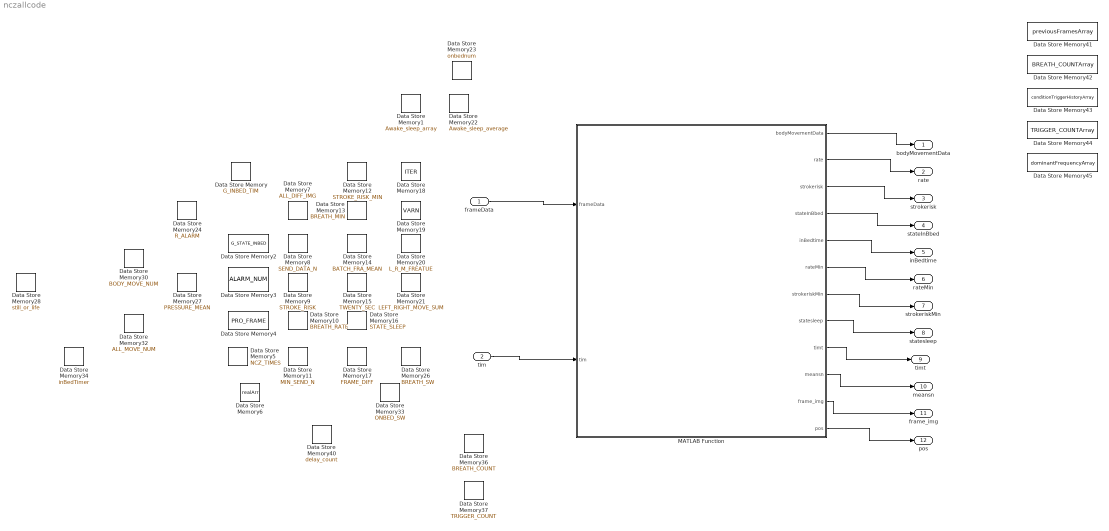
== matlab function nczallcode/MATLAB Function ==
function [bodyMovementData,rate,strokerisk,stateInBbed,inBedtime,rateMin,strokeriskMin,statesleep,timt,meansn,frame_img, pos] = nczcode(frameData, tim)
    % 定义全局变量
    global G_INBED_TIM 
%     global G_OUTBED_TIM
%     global SW_INBED
%     global SW_OUTBED
%     global INBED_TIME %Bed leaving reminder record variable
    global realArr
%     global onBedArr
    global G_STATE_INBED
    global PRO_FRAME
    global ALL_DIFF_IMG
    global SEND_DATA_N  
    global STROKE_RISK
    global BREATH_RATE  
    global MIN_SEND_N
    global STROKE_RISK_MIN
    global BREATH_MIN
    global BATCH_FRA_MEAN
    global TWENTY_SEC       
    global STATE_SLEEP
    global FRAME_DIFF
    global ITER
    global VARN
%     global ONBED_SW
    global BREATH_SW
    global PRESSURE_MEAN
    global BODY_MOVE_NUM
%     global ALL_MOVE_LIST
%     global ALL_MOVE_NUM
    global still_or_life
    global inBedTimer
%     global previousFrames
%     global BREATH_COUNT
%     global TRIGGER_COUNT
%     global conditionTriggerHistory %still state trigger
%     global dominantFrequency
    global delay_count
    %清醒入睡数组
    global Awake_sleep_array
    global Awake_sleep_average
    %onbednum 在床持续时间计数
    global onbednum
      
      div_num = 6; %160大床整除系数
      XTest = frameData';
      frameData = round(frameData/div_num);
    % 调整数据顺序并去噪
    frameData_b = frameData; % copy of original data for breath

    framedata_fall = frameData_b';
   

    %% 初始化相关变量
    inBedFlag = 14 * VARN; %0621：2000/160
%     move_prop = VARN;
    bodyMovementData = (-1) * ones(24,1) * VARN;   
    strokerisk = (-1) * VARN;  
    strokeriskMin = (-1) * VARN;   
    rate = (-1) * VARN;
    rateMin = (-1) * VARN;
    stateInBbed = (-1) * VARN;    
    statesleep = (-1) * ones(48,1) * VARN; 
    inBedtime = (-1) * VARN;
    timt = (-1) * VARN;
    meansn = (-1) * VARN;
    pos = (-1) * VARN;
    frame_img = (-1) * ones(160,1) * VARN;
%     samplingRate = 12 * VARN;
%     alarm_switch = 0;
%     on_mat_flag = 0; %在垫标志位240703
    SEND_DATA_N = SEND_DATA_N+1;

    %% 体动赋值
    gain = 1;
    if SEND_DATA_N*gain >= 4  
        pos = single(predictTree(XTest));
%         rate = BODY_MOVE_NUM;%测试
        BREATH_MIN = BREATH_MIN + BREATH_RATE;
        SEND_DATA_N = VARN - 1;
        still_or_life = VARN - 1;
    end

    %% 数据处理和传输
    if MIN_SEND_N*gain >= 720
        frame_img = reshape(frameData, 160, 1);
    end
end

%% 辅助函数

function YPred = predictTree(XTest)
    % 加载预训练的决策树模型
    persistent treeModel
    if isempty(treeModel)
        treeModel = loadCompactModel('trainedTreeModel.mat');
    end
    
    % 对输入数据进行归一化
    X_min = min(XTest, [], 2);
    X_max = max(XTest, [], 2);
    XTest_normalized = (XTest - X_min) ./ (X_max - X_min + eps);
    
    % 预测
    YPred = predict(treeModel, XTest_normalized);
end

function model = loadCompactModel(filename)
    % 加载紧凑模型
    s = coder.load(filename);
    model = s.tree;  % 将 s.treeModel 改为 s.tree
end

/*
 * Academic License - for use in teaching, academic research, and meeting
 * course requirements at degree granting institutions only.  Not for
 * government, commercial, or other organizational use.
 *
 * File: nczallcode.c
 *
 * Code generated for Simulink model 'nczallcode'.
 *
 * Model version                  : 7.17
 * Simulink Coder version         : 24.1 (R2024a) 19-Nov-2023
 * C/C++ source code generated on : Wed Oct  9 14:09:47 2024
 *
 * Target selection: ert.tlc
 * Embedded hardware selection: NXP->Cortex-M4
 * Code generation objectives: Unspecified
 * Validation result: Not run
 */

#include "nczallcode.h"
#include "rtwtypes.h"
#include "nczallcode_types.h"
#include <math.h>
#include "rt_nonfinite.h"
#include <string.h>

/* Block states (default storage) */
DW_nczallcode_T nczallcode_DW;

/* External inputs (root inport signals with default storage) */
ExtU_nczallcode_T nczallcode_U;

/* External outputs (root outports fed by signals with default storage) */
ExtY_nczallcode_T nczallcode_Y;

/* Real-time model */
static RT_MODEL_nczallcode_T nczallcode_M_;
RT_MODEL_nczallcode_T *const nczallcode_M = &nczallcode_M_;

/* Forward declaration for local functions */
static void nczallcode_strtrim(const char_T x_data[], const int32_T x_size[2],
  char_T y_data[], int32_T y_size[2]);
static void nczallcode_insertionsort(int32_T x[3], const
  cell_wrap_1_nczallcode_T cmp_workspace_c[3]);
static void nczallcode_introsort(int32_T x[3], const cell_wrap_1_nczallcode_T
  cmp_workspace_c[3]);
static uint8_T nczallc_categorical_categorical(const cell_wrap_1_nczallcode_T
  *inputData, const cell_wrap_1_nczallcode_T varargin_1[3]);
static uint8_T ncza_ClassificationTree_predict(const real_T
  obj_CutPredictorIndex[227], const real_T obj_Children[454], const real_T
  obj_CutPoint[227], const real_T obj_PruneList[227], const boolean_T
  obj_NanCutPoints[227], const real_T obj_Prior[3], const real_T obj_Cost[9],
  const real_T obj_ClassProbability[681], const real32_T Xin[160]);

/* Function for MATLAB Function: '<Root>/MATLAB Function' */
static void nczallcode_strtrim(const char_T x_data[], const int32_T x_size[2],
  char_T y_data[], int32_T y_size[2])
{
  int32_T b_j1;
  int32_T i;
  int32_T j2;
  static const boolean_T d[128] = { false, false, false, false, false, false,
    false, false, false, true, true, true, true, true, false, false, false,
    false, false, false, false, false, false, false, false, false, false, false,
    true, true, true, true, true, false, false, false, false, false, false,
    false, false, false, false, false, false, false, false, false, false, false,
    false, false, false, false, false, false, false, false, false, false, false,
    false, false, false, false, false, false, false, false, false, false, false,
    false, false, false, false, false, false, false, false, false, false, false,
    false, false, false, false, false, false, false, false, false, false, false,
    false, false, false, false, false, false, false, false, false, false, false,
    false, false, false, false, false, false, false, false, false, false, false,
    false, false, false, false, false, false, false, false, false, false, false,
    false };

  b_j1 = 0;
  while ((b_j1 + 1 <= x_size[1]) && d[(int32_T)x_data[b_j1]]) {
    b_j1++;
  }

  j2 = x_size[1];
  while ((j2 > 0) && d[(int32_T)x_data[j2 - 1]]) {
    j2--;
  }

  if (b_j1 + 1 > j2) {
    b_j1 = 0;
    j2 = 0;
  }

  y_size[0] = 1;
  j2 -= b_j1;
  y_size[1] = j2;
  for (i = 0; i < j2; i++) {
    y_data[i] = x_data[b_j1 + i];
  }
}

/* Function for MATLAB Function: '<Root>/MATLAB Function' */
static void nczallcode_insertionsort(int32_T x[3], const
  cell_wrap_1_nczallcode_T cmp_workspace_c[3])
{
  int32_T k;
  for (k = 0; k < 2; k++) {
    int32_T idx;
    int32_T xc;
    boolean_T exitg1;
    xc = x[k + 1] - 1;
    idx = k;
    exitg1 = false;
    while ((!exitg1) && (idx + 1 >= 1)) {
      int32_T b_k;
      int32_T j;
      int32_T n;
      int32_T n_tmp;
      int32_T n_tmp_0;
      boolean_T varargout_1;
      j = x[idx];
      n_tmp = cmp_workspace_c[xc].f1.size[1];
      n_tmp_0 = cmp_workspace_c[x[idx] - 1].f1.size[1];
      n = (int32_T)fmin(n_tmp, n_tmp_0);
      varargout_1 = (n_tmp < n_tmp_0);
      b_k = 0;
      int32_T exitg2;
      do {
        exitg2 = 0;
        if (b_k <= n - 1) {
          char_T tmp;
          char_T tmp_0;
          tmp = cmp_workspace_c[xc].f1.data[0];
          tmp_0 = cmp_workspace_c[x[idx] - 1].f1.data[0];
          if (tmp_0 != tmp) {
            varargout_1 = (tmp < tmp_0);
            exitg2 = 1;
          } else {
            b_k++;
          }
        } else {
          if (n_tmp_0 == n_tmp) {
            varargout_1 = (xc + 1 < j);
          }

          exitg2 = 1;
        }
      } while (exitg2 == 0);

      if (varargout_1) {
        x[idx + 1] = x[idx];
        idx--;
      } else {
        exitg1 = true;
      }
    }

    x[idx + 1] = xc + 1;
  }
}

/* Function for MATLAB Function: '<Root>/MATLAB Function' */
static void nczallcode_introsort(int32_T x[3], const cell_wrap_1_nczallcode_T
  cmp_workspace_c[3])
{
  nczallcode_insertionsort(x, cmp_workspace_c);
}

/* Function for MATLAB Function: '<Root>/MATLAB Function' */
static uint8_T nczallc_categorical_categorical(const cell_wrap_1_nczallcode_T
  *inputData, const cell_wrap_1_nczallcode_T varargin_1[3])
{
  cell_wrap_1_nczallcode_T a[3];
  cell_wrap_1_nczallcode_T b_a;
  int32_T f[3];
  int32_T b_i;
  int32_T exitg2;
  int32_T i;
  int32_T kstr;
  int32_T nb_tmp;
  uint8_T b_codes;
  boolean_T b_bool;
  boolean_T d;
  boolean_T exitg1;
  nczallcode_strtrim(inputData->f1.data, inputData->f1.size, b_a.f1.data,
                     b_a.f1.size);
  for (i = 0; i < 3; i++) {
    nczallcode_strtrim(varargin_1[i].f1.data, varargin_1[i].f1.size, a[i].
                       f1.data, a[i].f1.size);
    f[i] = i + 1;
  }

  nczallcode_introsort(f, a);
  i = 0;
  b_i = 0;
  exitg1 = false;
  while ((!exitg1) && (b_i < 3)) {
    b_bool = false;
    nb_tmp = a[b_i].f1.size[1];
    d = (b_a.f1.size[1] == 0);
    if (d && (nb_tmp == 0)) {
      b_bool = true;
    } else if (b_a.f1.size[1] == nb_tmp) {
      kstr = 0;
      do {
        exitg2 = 0;
        if (kstr <= nb_tmp - 1) {
          if (b_a.f1.data[0] != a[b_i].f1.data[0]) {
            exitg2 = 1;
          } else {
            kstr++;
          }
        } else {
          b_bool = true;
          exitg2 = 1;
        }
      } while (exitg2 == 0);
    }

    if (b_bool) {
      i = b_i + 1;
      exitg1 = true;
    } else {
      b_i++;
    }
  }

  b_codes = (uint8_T)i;
  return b_codes;
}

/* Function for MATLAB Function: '<Root>/MATLAB Function' */
static uint8_T ncza_ClassificationTree_predict(const real_T
  obj_CutPredictorIndex[227], const real_T obj_Children[454], const real_T
  obj_CutPoint[227], const real_T obj_PruneList[227], const boolean_T
  obj_NanCutPoints[227], const real_T obj_Prior[3], const real_T obj_Cost[9],
  const real_T obj_ClassProbability[681], const real32_T Xin[160])
{
  cell_wrap_1_nczallcode_T ain[4];
  cell_wrap_1_nczallcode_T b_ain[4];
  cell_wrap_1_nczallcode_T b[3];
  cell_wrap_1_nczallcode_T a;
  cell_wrap_1_nczallcode_T b_labels;
  cell_wrap_1_nczallcode_T d;
  cell_wrap_1_nczallcode_T e;
  cell_wrap_1_nczallcode_T f;
  real_T x[160];
  real_T b_x[3];
  real_T b_x_0;
  real_T ex;
  int32_T b_k;
  int32_T c_k;
  int32_T idx;
  int32_T iindx;
  int32_T m;
  boolean_T c_x[3];
  boolean_T y;
  static const char_T h[11] = { '<', 'u', 'n', 'd', 'e', 'f', 'i', 'n', 'e', 'd',
    '>' };

  static const char_T i[3] = { '1', '2', '3' };

  boolean_T exitg1;
  for (idx = 0; idx < 160; idx++) {
    x[idx] = Xin[idx];
  }

  m = 0;
  exitg1 = false;
  while (!(exitg1 || (obj_PruneList[m] <= 0.0))) {
    ex = x[(int32_T)obj_CutPredictorIndex[m] - 1];
    if (rtIsNaN(ex) || obj_NanCutPoints[m]) {
      exitg1 = true;
    } else if (ex < obj_CutPoint[m]) {
      m = (int32_T)obj_Children[m << 1] - 1;
    } else {
      m = (int32_T)obj_Children[(m << 1) + 1] - 1;
    }
  }

  for (idx = 0; idx < 3; idx++) {
    b_x[idx] = (obj_Cost[3 * idx + 1] * obj_ClassProbability[m + 227] +
                obj_Cost[3 * idx] * obj_ClassProbability[m]) + obj_Cost[3 * idx
      + 2] * obj_ClassProbability[m + 454];
  }

  ex = obj_Prior[0];
  iindx = -1;
  if (obj_Prior[0] < obj_Prior[1]) {
    ex = obj_Prior[1];
    iindx = 0;
  }

  if (ex < obj_Prior[2]) {
    iindx = 1;
  }

  if (!rtIsNaN(b_x[0])) {
    idx = 1;
  } else {
    idx = 0;
    b_k = 2;
    exitg1 = false;
    while ((!exitg1) && (b_k < 4)) {
      if (!rtIsNaN(b_x[b_k - 1])) {
        idx = b_k;
        exitg1 = true;
      } else {
        b_k++;
      }
    }
  }

  if (idx == 0) {
    b_k = 1;
  } else {
    ex = b_x[idx - 1];
    b_k = idx;
    for (c_k = idx + 1; c_k < 4; c_k++) {
      b_x_0 = b_x[c_k - 1];
      if (ex > b_x_0) {
        ex = b_x_0;
        b_k = c_k;
      }
    }
  }

  c_x[0] = rtIsNaN(obj_ClassProbability[m]);
  c_x[1] = rtIsNaN(obj_ClassProbability[m + 227]);
  c_x[2] = rtIsNaN(obj_ClassProbability[m + 454]);
  y = true;
  m = 0;
  exitg1 = false;
  while ((!exitg1) && (m < 3)) {
    if (!c_x[m]) {
      y = false;
      exitg1 = true;
    } else {
      m++;
    }
  }

  b_ain[0].f1.size[0] = 1;
  b_ain[0].f1.size[1] = 11;
  for (idx = 0; idx < 11; idx++) {
    b_ain[0].f1.data[idx] = h[idx];
  }

  b_ain[1].f1.size[0] = 1;
  b_ain[1].f1.size[1] = 1;
  b_ain[1].f1.data[0] = '1';
  b_ain[2].f1.size[0] = 1;
  b_ain[2].f1.size[1] = 1;
  b_ain[2].f1.data[0] = '2';
  b_ain[3].f1.size[0] = 1;
  b_ain[3].f1.size[1] = 1;
  b_ain[3].f1.data[0] = '3';
  b_labels = b_ain[iindx + 2];
  if (!y) {
    b_labels.f1.size[0] = 1;
    b_labels.f1.size[1] = 1;
    b_labels.f1.data[0] = i[b_k - 1];
  }

  nczallcode_strtrim(b_labels.f1.data, b_labels.f1.size, a.f1.data, a.f1.size);
  iindx = 0;
  y = false;
  if ((a.f1.size[1] == 1) && (a.f1.data[0] == '1')) {
    y = true;
  }

  if (y) {
    iindx = 1;
  } else {
    y = false;
    if ((a.f1.size[1] == 1) && (a.f1.data[0] == '2')) {
      y = true;
    }

    if (y) {
      iindx = 2;
    } else {
      y = false;
      if ((a.f1.size[1] == 1) && (a.f1.data[0] == '3')) {
        y = true;
      }

      if (y) {
        iindx = 3;
      }
    }
  }

  ain[0].f1.size[0] = 1;
  ain[0].f1.size[1] = 11;
  ain[1].f1.size[0] = 1;
  ain[1].f1.size[1] = 1;
  ain[1].f1.data[0] = '1';
  ain[2].f1.size[0] = 1;
  ain[2].f1.size[1] = 1;
  ain[2].f1.data[0] = '2';
  ain[3].f1.size[0] = 1;
  ain[3].f1.size[1] = 1;
  ain[3].f1.data[0] = '3';
  for (idx = 0; idx < 11; idx++) {
    ain[0].f1.data[idx] = h[idx];
  }

  b_labels = ain[iindx];
  d.f1.size[0] = 1;
  d.f1.size[1] = 1;
  d.f1.data[0] = '1';
  e.f1.size[0] = 1;
  e.f1.size[1] = 1;
  e.f1.data[0] = '2';
  f.f1.size[0] = 1;
  f.f1.size[1] = 1;
  f.f1.data[0] = '3';
  b[0] = d;
  b[1] = e;
  b[2] = f;
  return nczallc_categorical_categorical(&b_labels, b);
}

/* Model step function */
void nczallcode_step(void)
{
  int32_T b_k;
  int32_T k;
  real32_T frameData[160];
  real32_T tmp[160];
  real32_T X_max;
  real32_T X_min;
  real32_T frameData_0;
  uint8_T a_codes;
  boolean_T tmp_0;
  static const uint8_T b[227] = { 103U, 66U, 147U, 77U, 118U, 17U, 65U, 106U,
    115U, 5U, 91U, 39U, 8U, 5U, 83U, 7U, 139U, 94U, 76U, 64U, 44U, 0U, 1U, 131U,
    114U, 0U, 0U, 0U, 6U, 0U, 0U, 76U, 21U, 75U, 3U, 84U, 16U, 4U, 24U, 13U,
    117U, 0U, 16U, 0U, 0U, 70U, 0U, 0U, 1U, 0U, 0U, 5U, 36U, 0U, 0U, 34U, 80U,
    0U, 0U, 108U, 76U, 24U, 0U, 0U, 4U, 0U, 0U, 15U, 0U, 24U, 0U, 0U, 0U, 82U,
    7U, 0U, 0U, 0U, 0U, 0U, 59U, 23U, 121U, 14U, 0U, 35U, 0U, 98U, 27U, 0U, 0U,
    0U, 0U, 0U, 0U, 1U, 65U, 26U, 2U, 0U, 3U, 0U, 0U, 59U, 4U, 0U, 3U, 0U, 0U,
    0U, 0U, 39U, 26U, 4U, 3U, 0U, 0U, 0U, 18U, 51U, 47U, 0U, 0U, 0U, 0U, 128U,
    0U, 0U, 0U, 0U, 0U, 0U, 0U, 0U, 14U, 0U, 0U, 0U, 0U, 0U, 38U, 154U, 0U, 0U,
    0U, 159U, 4U, 0U, 0U, 11U, 0U, 143U, 76U, 88U, 4U, 0U, 0U, 27U, 0U, 148U, 3U,
    3U, 0U, 32U, 0U, 7U, 0U, 0U, 18U, 18U, 0U, 0U, 0U, 0U, 0U, 91U, 0U, 0U, 0U,
    1U, 0U, 49U, 0U, 34U, 0U, 0U, 0U, 45U, 0U, 76U, 3U, 9U, 70U, 13U, 15U, 3U,
    0U, 0U, 0U, 93U, 0U, 77U, 0U, 0U, 0U, 0U, 0U, 70U, 0U, 23U, 75U, 26U, 0U, 0U,
    2U, 0U, 0U, 144U, 3U, 0U, 0U, 0U, 7U, 0U, 0U, 0U, 0U };

  static const uint8_T c[454] = { 2U, 3U, 4U, 5U, 6U, 7U, 8U, 9U, 10U, 11U, 12U,
    13U, 14U, 15U, 16U, 17U, 18U, 19U, 20U, 21U, 22U, 23U, 24U, 25U, 26U, 27U,
    28U, 29U, 30U, 31U, 32U, 33U, 34U, 35U, 36U, 37U, 38U, 39U, 40U, 41U, 42U,
    43U, 0U, 0U, 44U, 45U, 46U, 47U, 48U, 49U, 0U, 0U, 0U, 0U, 0U, 0U, 50U, 51U,
    0U, 0U, 0U, 0U, 52U, 53U, 54U, 55U, 56U, 57U, 58U, 59U, 60U, 61U, 62U, 63U,
    64U, 65U, 66U, 67U, 68U, 69U, 70U, 71U, 0U, 0U, 72U, 73U, 0U, 0U, 0U, 0U,
    74U, 75U, 0U, 0U, 0U, 0U, 76U, 77U, 0U, 0U, 0U, 0U, 78U, 79U, 80U, 81U, 0U,
    0U, 0U, 0U, 82U, 83U, 84U, 85U, 0U, 0U, 0U, 0U, 86U, 87U, 88U, 89U, 90U, 91U,
    0U, 0U, 0U, 0U, 92U, 93U, 0U, 0U, 0U, 0U, 94U, 95U, 0U, 0U, 96U, 97U, 0U, 0U,
    0U, 0U, 0U, 0U, 98U, 99U, 100U, 101U, 0U, 0U, 0U, 0U, 0U, 0U, 0U, 0U, 0U, 0U,
    102U, 103U, 104U, 105U, 106U, 107U, 108U, 109U, 0U, 0U, 110U, 111U, 0U, 0U,
    112U, 113U, 114U, 115U, 0U, 0U, 0U, 0U, 0U, 0U, 0U, 0U, 0U, 0U, 0U, 0U, 116U,
    117U, 118U, 119U, 120U, 121U, 122U, 123U, 0U, 0U, 124U, 125U, 0U, 0U, 0U, 0U,
    126U, 127U, 128U, 129U, 0U, 0U, 130U, 131U, 0U, 0U, 0U, 0U, 0U, 0U, 0U, 0U,
    132U, 133U, 134U, 135U, 136U, 137U, 138U, 139U, 0U, 0U, 0U, 0U, 0U, 0U, 140U,
    141U, 142U, 143U, 144U, 145U, 0U, 0U, 0U, 0U, 0U, 0U, 0U, 0U, 146U, 147U, 0U,
    0U, 0U, 0U, 0U, 0U, 0U, 0U, 0U, 0U, 0U, 0U, 0U, 0U, 0U, 0U, 148U, 149U, 0U,
    0U, 0U, 0U, 0U, 0U, 0U, 0U, 0U, 0U, 150U, 151U, 152U, 153U, 0U, 0U, 0U, 0U,
    0U, 0U, 154U, 155U, 156U, 157U, 0U, 0U, 0U, 0U, 158U, 159U, 0U, 0U, 160U,
    161U, 162U, 163U, 164U, 165U, 166U, 167U, 0U, 0U, 0U, 0U, 168U, 169U, 0U, 0U,
    170U, 171U, 172U, 173U, 174U, 175U, 0U, 0U, 176U, 177U, 0U, 0U, 178U, 179U,
    0U, 0U, 0U, 0U, 180U, 181U, 182U, 183U, 0U, 0U, 0U, 0U, 0U, 0U, 0U, 0U, 0U,
    0U, 184U, 185U, 0U, 0U, 0U, 0U, 0U, 0U, 186U, 187U, 0U, 0U, 188U, 189U, 0U,
    0U, 190U, 191U, 0U, 0U, 0U, 0U, 0U, 0U, 192U, 193U, 0U, 0U, 194U, 195U, 196U,
    197U, 198U, 199U, 200U, 201U, 202U, 203U, 204U, 205U, 206U, 207U, 0U, 0U, 0U,
    0U, 0U, 0U, 208U, 209U, 0U, 0U, 210U, 211U, 0U, 0U, 0U, 0U, 0U, 0U, 0U, 0U,
    0U, 0U, 212U, 213U, 0U, 0U, 214U, 215U, 216U, 217U, 218U, 219U, 0U, 0U, 0U,
    0U, 220U, 221U, 0U, 0U, 0U, 0U, 222U, 223U, 224U, 225U, 0U, 0U, 0U, 0U, 0U,
    0U, 226U, 227U, 0U, 0U, 0U, 0U, 0U, 0U, 0U, 0U };

  static const real_T d[227] = { 0.079455266955266945, 0.53629776021080366,
    0.045715778474399164, 0.38924963924963929, 0.36730911786508524,
    0.676923076923077, 0.27115384615384619, 0.0035460992907801418,
    0.060790835181079084, 0.48038461538461541, 0.0066666666666666671,
    0.26365441906653425, 0.54740957966764414, 0.025657894736842105,
    0.04334719334719335, 0.30724070450097846, 0.68072955047899775,
    0.18708333333333332, 0.87655279503105588, 0.033615819209039548,
    0.3149535510937968, 0.0, 0.21527777777777779, 0.49108260325406761,
    0.13871910709540261, 0.0, 0.0, 0.0, 0.020300751879699246, 0.0, 0.0,
    0.13245096172157683, 0.11283565035231384, 0.99315068493150682,
    0.13580246913580246, 0.01626123744050767, 0.38855773726040205,
    0.18568241903502974, 0.73947010869565211, 0.025994318181818181,
    0.6692307692307693, 0.0, 0.72745901639344268, 0.0, 0.0, 0.222970173985087,
    0.0, 0.0, 0.02, 0.0, 0.0, 0.46992257296009532, 0.029144816458249293, 0.0,
    0.0, 0.8609375, 0.021845694799658994, 0.0, 0.0, 0.31608969315499608,
    0.61437177280550781, 0.68878865979381443, 0.0, 0.0, 0.32507976140934941, 0.0,
    0.0, 0.094281972937581837, 0.0, 0.045464982778415611, 0.0, 0.0, 0.0,
    0.77096018735363, 0.26930256236212458, 0.0, 0.0, 0.0, 0.0, 0.0,
    0.44826132771338251, 0.57880149812734083, 0.011634199134199134,
    0.01693173212160554, 0.0, 0.49268104776579358, 0.0, 0.03919904972000679,
    0.055566274358479648, 0.0, 0.0, 0.0, 0.0, 0.0, 0.0, 0.007462686567164179,
    0.14491488432998689, 0.7945314998401023, 0.0083333333333333332, 0.0,
    0.006024096385542169, 0.0, 0.0, 0.74106858054226477, 0.15239477503628446,
    0.0, 0.088415803605677024, 0.0, 0.0, 0.0, 0.0, 0.077272727272727271,
    0.12011858515640972, 0.29363399544122432, 0.074308300395256918, 0.0, 0.0,
    0.0, 0.014202256244963738, 0.44816017316017315, 0.074362041467304629, 0.0,
    0.0, 0.0, 0.0, 0.65030120481927711, 0.0, 0.0, 0.0, 0.0, 0.0, 0.0, 0.0, 0.0,
    0.0053191489361702126, 0.0, 0.0, 0.0, 0.0, 0.0, 0.87075393537696766,
    0.034286833855799372, 0.0, 0.0, 0.0, 0.17560837577815508, 0.03125, 0.0, 0.0,
    0.25888888888888889, 0.0, 0.47127329192546585, 0.26235465116279066,
    0.595814307458143, 0.34462444771723122, 0.0, 0.0, 0.014395194697597348, 0.0,
    0.32057562767911818, 0.006024096385542169, 0.020408163265306121, 0.0,
    0.93680445151033387, 0.0, 0.085858585858585856, 0.0, 0.0,
    0.025062656641604009, 0.89333333333333331, 0.0, 0.0, 0.0, 0.0, 0.0,
    0.41981921660528959, 0.0, 0.0, 0.0, 0.10784313725490197, 0.0,
    0.39358974358974358, 0.0, 0.78035379254891457, 0.0, 0.0, 0.0,
    0.035609551738583996, 0.0, 0.99206349206349209, 0.026097560975609758,
    0.022388059701492536, 0.1835016835016835, 0.65535827520608758,
    0.024448419797257006, 0.006024096385542169, 0.0, 0.0, 0.0, 0.99, 0.0,
    0.37331415213091168, 0.0, 0.0, 0.0, 0.0, 0.0, 0.17132541346377822, 0.0,
    0.53178023161863719, 0.22376543209876543, 0.661527514231499, 0.0, 0.0,
    0.032051282051282048, 0.0, 0.0, 0.2784237726098191, 0.10752547687483668, 0.0,
    0.0, 0.0, 0.28855569155446759, 0.0, 0.0, 0.0, 0.0 };

  static const int8_T e[227] = { 69, 68, 64, 67, 62, 64, 61, 65, 66, 58, 38, 56,
    46, 44, 15, 60, 57, 66, 39, 50, 48, 0, 31, 54, 34, 0, 0, 0, 3, 0, 0, 32, 43,
    55, 3, 63, 52, 15, 17, 44, 33, 0, 37, 0, 0, 47, 0, 0, 19, 0, 0, 3, 22, 0, 0,
    53, 49, 0, 0, 41, 59, 24, 0, 0, 15, 0, 0, 42, 0, 22, 0, 0, 0, 45, 34, 0, 0,
    0, 0, 0, 6, 51, 40, 22, 0, 3, 0, 26, 34, 0, 0, 0, 0, 0, 0, 3, 21, 35, 8, 0,
    12, 0, 0, 36, 12, 0, 28, 0, 0, 0, 0, 12, 12, 3, 3, 0, 0, 0, 18, 23, 17, 0, 0,
    0, 0, 35, 0, 0, 0, 0, 0, 0, 0, 0, 2, 0, 0, 0, 0, 0, 11, 20, 0, 0, 0, 30, 6,
    0, 0, 7, 0, 14, 20, 29, 27, 0, 0, 7, 0, 10, 6, 17, 0, 25, 0, 12, 0, 0, 5, 10,
    0, 0, 0, 0, 0, 16, 0, 0, 0, 5, 0, 10, 0, 16, 0, 0, 0, 10, 0, 13, 16, 10, 10,
    9, 13, 8, 0, 0, 0, 1, 0, 9, 0, 0, 0, 0, 0, 1, 0, 4, 9, 1, 0, 0, 4, 0, 0, 1,
    1, 0, 0, 0, 1, 0, 0, 0, 0 };

  static const boolean_T f[227] = { false, false, false, false, false, false,
    false, false, false, false, false, false, false, false, false, false, false,
    false, false, false, false, true, false, false, false, true, true, true,
    false, true, true, false, false, false, false, false, false, false, false,
    false, false, true, false, true, true, false, true, true, false, true, true,
    false, false, true, true, false, false, true, true, false, false, false,
    true, true, false, true, true, false, true, false, true, true, true, false,
    false, true, true, true, true, true, false, false, false, false, true, false,
    true, false, false, true, true, true, true, true, true, false, false, false,
    false, true, false, true, true, false, false, true, false, true, true, true,
    true, false, false, false, false, true, true, true, false, false, false,
    true, true, true, true, false, true, true, true, true, true, true, true,
    true, false, true, true, true, true, true, false, false, true, true, true,
    false, false, true, true, false, true, false, false, false, false, true,
    true, false, true, false, false, false, true, false, true, false, true, true,
    false, false, true, true, true, true, true, false, true, true, true, false,
    true, false, true, false, true, true, true, false, true, false, false, false,
    false, false, false, false, true, true, true, false, true, false, true, true,
    true, true, true, false, true, false, false, false, true, true, false, true,
    true, false, false, true, true, true, false, true, true, true, true };

  static const int8_T h[9] = { 0, 1, 1, 1, 0, 1, 1, 1, 0 };

  static const real_T i[681] = { 0.28789281787143539, 0.36051230027900344,
    0.13027522935778282, 0.19149561842027793, 0.79233658903082094,
    0.070237231948609286, 0.59502806736166458, 0.14221628328718314,
    0.27060986821942151, 0.86391412056153061, 0.06999999999999966,
    0.06809184481392716, 0.09359605911330128, 0.00199999999999999,
    0.99196787148594368, 0.62535612535612073, 0.067452882177882881,
    0.4070711896798837, 0.026495726495727161, 0.94432314410480844,
    0.0733452593917708, 0.0, 0.6461538461538463, 0.03870967741935033,
    0.86075949367088633, 0.0, 1.0, 0.0, 0.01428571428571427, 0.0, 1.0,
    0.956427015250544, 0.0, 0.038636363636359347, 0.99633699633699635,
    0.15446265938069603, 0.88827203331019866, 0.0052562417871223404,
    0.87719298245614052, 0.19932432432432443, 0.9867307692307703, 0.0,
    0.28275862068965557, 1.0, 0.0, 0.018680397557176466, 1.0, 1.0, 0.0, 1.0, 0.0,
    0.035714285714285691, 0.985393258426966, 0.0, 0.0, 0.0057204147300672584,
    0.71393643031784937, 0.0, 1.0, 0.0015360983102918574, 0.20200573065903157,
    0.98918083462132889, 0.0, 0.0, 0.54545454545454541, 1.0, 0.0, 0.4609375, 0.0,
    0.992072699149266, 0.0, 0.0, 1.0, 0.0040297960678954579, 0.75925925925925875,
    0.0, 0.0, 0.0, 1.0, 0.0, 0.99772468714448226, 0.0035789213871401334,
    0.0659722222222221, 0.0, 1.0, 0.0016666666666666653, 0.0,
    0.0054777845404749108, 0.91796008869179635, 1.0, 0.0, 1.0, 0.0, 0.0, 1.0,
    0.0, 0.99437984496124088, 0.0040685488842307806, 0.0, 1.0, 0.0, 1.0, 0.0,
    0.003136762860727344, 0.030075187969924869, 0.0, 0.27536231884057949, 0.0,
    0.0, 0.0, 0.5, 0.17391304347826084, 0.0030864197530865167, 0.027027027027027,
    0.99758454106280192, 0.0, 0.0, 0.0, 0.99631067961165087,
    0.003847108463638135, 0.037735849056603737, 0.0, 0.0, 0.0, 0.0,
    0.0031517902168427783, 0.0, 0.0, 1.0, 1.0, 0.0, 0.0, 0.79999999999999993,
    0.5714285714285714, 0.00061996280223188568, 0.0, 1.0, 1.0, 0.0, 0.0,
    0.99786075457020629, 0.0023614218245087736, 1.0, 0.0, 0.22222222222222221,
    0.0029139744077026669, 0.051282051282051232, 0.49999999999999994, 0.0,
    0.99863760217983655, 0.0, 0.0015016894005754568, 0.1272727272727272,
    0.00063726739739986937, 0.38297872340425521, 0.0, 1.0, 0.999026479750779,
    0.0, 0.0015035709810798737, 0.0, 0.26923076923076916, 0.0,
    0.000638895987733117, 0.0, 0.81818181818181823, 0.0, 0.0,
    0.99941566030385676, 0.0012532898859504609, 1.0, 0.0, 0.0, 1.0, 0.0,
    0.00064012290359741035, 0.0, 1.0, 0.0, 0.98192771084337349, 1.0,
    0.0012536041118213273, 0.0, 0.00064045087741762161, 0.0, 0.0, 1.0,
    0.0011285266457678814, 0.5, 0.00025916807049368266, 0.033333333333333312,
    0.0, 0.0011525163273144914, 0.00026007802340698947, 0.0, 0.15789473684210528,
    0.0, 0.0, 0.0, 0.00064061499039069422, 1.0, 0.0, 1.0, 0.0, 0.0, 0.0, 1.0,
    0.00064102564102556, 0.0, 0.0, 0.0, 0.00051301782736943625,
    0.33333333333333331, 0.0, 0.0, 0.0, 0.0, 0.00025843132187617881,
    0.03448275862068962, 0.0, 0.0, 0.0, 0.025974025974025955,
    0.39999999999999997, 0.0, 0.0, 1.0, 0.34180218762659303, 0.44133062811730467,
    0.12577981651374676, 0.56989942951243378, 0.1128474830954074,
    0.097482647881475662, 0.34482758620689968, 0.765963539181091,
    0.25513331290222951, 0.035672997522705627, 0.891666666666667,
    0.023187422237300807, 0.90640394088669862, 0.86000000000000054, 0.0,
    0.0690883190883196, 0.87380138873582336, 0.39775441949354851, 0.0,
    0.020378457059677904, 0.18604651162790603, 1.0, 0.0, 0.019941348973604629,
    0.11075949367088582, 1.0, 0.0, 1.0, 0.0, 0.0, 0.0, 0.031590413943355614,
    0.13991769547325053, 0.90079545454546539, 0.00366300366300365,
    0.60655737704917267, 0.0, 0.0, 0.0, 0.23310810810810823,
    0.0082692307692300085, 0.0, 0.71724137931034437, 0.0, 0.0,
    0.020356843491794882, 0.0, 0.0, 0.79545454545454564, 0.0, 0.0,
    0.9642857142857143, 0.0022471910112359895, 0.0, 1.0, 0.932070075080451,
    0.25916870415647825, 1.0, 0.0, 0.079877112135176676, 0.77029608404965921,
    0.0, 0.0, 0.0, 0.0, 0.0, 0.0, 0.5390625, 0.0, 0.0029002320185612142, 1.0,
    1.0, 0.0, 0.020271095371837741, 0.024691358024691384, 1.0, 0.0, 1.0, 0.0,
    0.0, 0.0022753128555176691, 0.9590275206713611, 0.17361111111111097,
    0.90598290598290587, 0.0, 0.0016666666666666653, 1.0, 0.98113207547169745,
    0.0022172949002217182, 0.0, 0.0, 0.0, 0.0, 1.0, 0.0, 0.91666666666666663,
    0.00077519379844953986, 0.011219331771666684, 0.96153846153846156, 0.0,
    0.10256410256410248, 0.0, 1.0, 0.97503136762861031, 0.0, 0.0,
    0.7246376811594204, 0.0, 1.0, 0.0, 0.5, 0.043478260869565209,
    0.99444444444444424, 0.0, 0.0024154589371980545, 1.0, 0.0, 0.0,
    0.00077669902912614079, 0.0058327128319674969, 0.83018867924528317, 1.0, 0.0,
    1.0, 0.0, 0.97970247100353258, 0.0, 0.0, 0.0, 0.0, 1.0, 0.0,
    0.19999999999999998, 0.0, 0.99876007439553627, 0.0, 0.0, 0.0, 1.0, 0.0,
    0.000777907429015874, 0.0058414118816796029, 0.0, 1.0, 0.0,
    0.98454326618522947, 0.0, 0.0, 1.0, 0.0, 1.0, 0.0035039419346760679,
    0.34545454545454535, 0.98993117512108209, 0.085106382978723374, 0.0, 0.0,
    0.0, 0.0, 0.0025059516351331234, 0.79999999999999993, 0.73076923076923073,
    0.0, 0.99246102734474928, 0.0, 0.1818181818181818, 0.0, 0.0, 0.0,
    0.0025065797719009222, 0.0, 1.0, 0.0, 0.0, 1.0, 0.9943669184483428, 0.0, 0.0,
    1.0, 0.0, 0.0, 0.0022564874012783892, 1.0, 0.994876392980659, 0.0, 0.0, 0.0,
    0.0021316614420059982, 0.5, 0.99727873525981636, 0.78888888888888908,
    0.072289156626506076, 0.00064028684850805082, 0.998439531859558,
    0.66666666666666663, 0.0, 1.0, 1.0, 0.0, 0.00064061499039069422, 0.0,
    0.99869927159209171, 0.0, 0.0, 1.0, 0.0, 0.0, 0.00038461538461533604,
    0.39999999999999997, 0.99973294164775006, 0.95979899497487431,
    0.00038476337052707716, 0.0, 1.0, 0.84615384615384615, 0.0, 1.0, 0.0,
    0.051724137931034427, 0.0, 1.0, 0.0, 0.0, 0.6, 0.0, 0.0, 0.0,
    0.37030499450197163, 0.19815707160369198, 0.74394495412847028,
    0.23860495206728824, 0.0948159278737718, 0.83228012016991515,
    0.060144346431435687, 0.091820177531726, 0.47425681887834886,
    0.10041288191576375, 0.038333333333333129, 0.90872073294877209, 0.0,
    0.13799999999999946, 0.008032128514056297, 0.30555555555555974,
    0.058745729086293816, 0.19517439082656779, 0.97350427350427282,
    0.035298398835513611, 0.74060822898032308, 0.0, 0.3538461538461537,
    0.94134897360704506, 0.02848101265822776, 0.0, 0.0, 0.0, 0.98571428571428577,
    1.0, 0.0, 0.011982570806100398, 0.8600823045267495, 0.0605681818181752, 0.0,
    0.23897996357013127, 0.11172796668980135, 0.99474375821287775,
    0.12280701754385953, 0.56756756756756721, 0.0049999999999995378, 1.0, 0.0,
    0.0, 1.0, 0.96096275895102856, 0.0, 0.0, 0.20454545454545442, 0.0, 1.0, 0.0,
    0.012359550561797942, 1.0, 0.0, 0.062209510189481752, 0.026894865525672305,
    0.0, 0.0, 0.91858678955453144, 0.027698185291309175, 0.010819165378671072,
    1.0, 1.0, 0.45454545454545453, 0.0, 1.0, 0.0, 1.0, 0.0050270688321727743,
    0.0, 0.0, 0.0, 0.97569910856026676, 0.21604938271604981, 0.0, 1.0, 0.0, 0.0,
    1.0, 0.0, 0.037393557941498762, 0.76041666666666685, 0.094017094017094127,
    0.0, 0.99666666666666659, 0.0, 0.013390139987827563, 0.079822616407981925,
    0.0, 1.0, 0.0, 1.0, 0.0, 0.0, 0.083333333333333343, 0.0048449612403096273,
    0.98471211934410252, 0.038461538461538443, 0.0, 0.89743589743589758, 0.0,
    0.0, 0.021831869510662311, 0.96992481203007508, 1.0, 0.0, 1.0, 0.0, 1.0, 0.0,
    0.78260869565217384, 0.0024691358024692134, 0.97297297297297292, 0.0, 0.0,
    1.0, 1.0, 0.0029126213592230278, 0.99032017870439437, 0.13207547169811309,
    0.0, 1.0, 0.0, 1.0, 0.017145738779624671, 1.0, 1.0, 0.0, 0.0, 0.0, 1.0, 0.0,
    0.4285714285714286, 0.00061996280223188568, 1.0, 0.0, 0.0, 0.0, 1.0,
    0.0013613380007777794, 0.99179716629381165, 0.0, 0.0, 0.77777777777777768,
    0.012542759407067984, 0.94871794871794868, 0.5, 0.0, 0.0013623978201633595,
    0.0, 0.99499436866474844, 0.52727272727272734, 0.0094315574815180738,
    0.53191489361702138, 1.0, 0.0, 0.00097352024922109229, 1.0,
    0.995990477383787, 0.2, 0.0, 1.0, 0.0069000766675176711, 1.0, 0.0, 1.0, 1.0,
    0.00058433969614330318, 0.99624013034214864, 0.0, 0.0, 1.0, 0.0, 0.0,
    0.0049929586480598051, 1.0, 0.0, 0.0, 0.018072289156626512, 0.0,
    0.99648990848690033, 0.0, 0.0044831561419233553, 1.0, 1.0, 0.0,
    0.99673981191222616, 0.0, 0.0024620966696899857, 0.17777777777777765,
    0.927710843373494, 0.99820719682417747, 0.0013003901170349475,
    0.33333333333333331, 0.8421052631578948, 0.0, 0.0, 1.0, 0.9987187700192186,
    0.0, 0.0013007284079082657, 0.0, 1.0, 0.0, 1.0, 0.0, 0.99897435897435916,
    0.60000000000000009, 0.00026705835224993352, 0.04020100502512558,
    0.99910221880210348, 0.66666666666666674, 0.0, 0.15384615384615385, 1.0, 0.0,
    0.9997415686781238, 0.91379310344827591, 1.0, 0.0, 1.0, 0.974025974025974,
    0.0, 1.0, 1.0, 0.0 };

  boolean_T exitg1;

  /* Outport: '<Root>/pos' incorporates:
   *  MATLAB Function: '<Root>/MATLAB Function'
   */
  nczallcode_Y.pos = -nczallcode_DW.VARN;
  for (k = 0; k < 160; k++) {
    /* MATLAB Function: '<Root>/MATLAB Function' incorporates:
     *  Inport: '<Root>/frameData'
     */
    frameData[k] = roundf(nczallcode_U.frameData[k] / 6.0F);

    /* Outport: '<Root>/frame_img' incorporates:
     *  MATLAB Function: '<Root>/MATLAB Function'
     */
    nczallcode_Y.frame_img[k] = -nczallcode_DW.VARN;
  }

  /* MATLAB Function: '<Root>/MATLAB Function' incorporates:
   *  Inport: '<Root>/frameData'
   */
  nczallcode_DW.SEND_DATA_N++;
  if (nczallcode_DW.SEND_DATA_N >= 4.0F) {
    if (!nczallcode_DW.treeModel_not_empty) {
      for (k = 0; k < 227; k++) {
        nczallcode_DW.treeModel.CutPredictorIndex[k] = b[k];
      }

      for (k = 0; k < 454; k++) {
        nczallcode_DW.treeModel.Children[k] = c[k];
      }

      for (k = 0; k < 227; k++) {
        nczallcode_DW.treeModel.CutPoint[k] = d[k];
        nczallcode_DW.treeModel.PruneList[k] = e[k];
        nczallcode_DW.treeModel.NanCutPoints[k] = f[k];
        nczallcode_DW.treeModel.InfCutPoints[k] = false;
      }

      nczallcode_DW.treeModel.ClassNamesLength[0] = 1;
      nczallcode_DW.treeModel.Prior[0] = 0.28789281787140458;
      nczallcode_DW.treeModel.ClassNamesLength[1] = 1;
      nczallcode_DW.treeModel.Prior[1] = 0.34180218762659875;
      nczallcode_DW.treeModel.ClassNamesLength[2] = 1;
      nczallcode_DW.treeModel.Prior[2] = 0.37030499450199666;
      for (k = 0; k < 9; k++) {
        nczallcode_DW.treeModel.Cost[k] = h[k];
      }

      nczallcode_DW.treeModel.CharClassNamesLength[0] = 1;
      nczallcode_DW.treeModel.CharClassNamesLength[1] = 1;
      nczallcode_DW.treeModel.CharClassNamesLength[2] = 1;
      memcpy(&nczallcode_DW.treeModel.ClassProbability[0], &i[0], 681U * sizeof
             (real_T));
      nczallcode_DW.treeModel_not_empty = true;
    }

    tmp_0 = !rtIsNaNF(nczallcode_U.frameData[0]);
    if (tmp_0) {
      k = 1;
    } else {
      k = 0;
      b_k = 2;
      exitg1 = false;
      while ((!exitg1) && (b_k < 161)) {
        if (!rtIsNaNF(nczallcode_U.frameData[b_k - 1])) {
          k = b_k;
          exitg1 = true;
        } else {
          b_k++;
        }
      }
    }

    if (k == 0) {
      X_min = nczallcode_U.frameData[0];
    } else {
      X_min = nczallcode_U.frameData[k - 1];
      for (b_k = k + 1; b_k < 161; b_k++) {
        frameData_0 = nczallcode_U.frameData[b_k - 1];
        if (X_min > frameData_0) {
          X_min = frameData_0;
        }
      }
    }

    if (tmp_0) {
      k = 1;
    } else {
      k = 0;
      b_k = 2;
      exitg1 = false;
      while ((!exitg1) && (b_k < 161)) {
        if (!rtIsNaNF(nczallcode_U.frameData[b_k - 1])) {
          k = b_k;
          exitg1 = true;
        } else {
          b_k++;
        }
      }
    }

    if (k == 0) {
      X_max = nczallcode_U.frameData[0];
    } else {
      X_max = nczallcode_U.frameData[k - 1];
      for (b_k = k + 1; b_k < 161; b_k++) {
        frameData_0 = nczallcode_U.frameData[b_k - 1];
        if (X_max < frameData_0) {
          X_max = frameData_0;
        }
      }
    }

    frameData_0 = (X_max - X_min) + 2.22044605E-16F;
    for (k = 0; k < 160; k++) {
      tmp[k] = (nczallcode_U.frameData[k] - X_min) / frameData_0;
    }

    a_codes = ncza_ClassificationTree_predict
      (nczallcode_DW.treeModel.CutPredictorIndex,
       nczallcode_DW.treeModel.Children, nczallcode_DW.treeModel.CutPoint,
       nczallcode_DW.treeModel.PruneList, nczallcode_DW.treeModel.NanCutPoints,
       nczallcode_DW.treeModel.Prior, nczallcode_DW.treeModel.Cost,
       nczallcode_DW.treeModel.ClassProbability, tmp);

    /* Outport: '<Root>/pos' incorporates:
     *  Inport: '<Root>/frameData'
     */
    nczallcode_Y.pos = a_codes;
    if (a_codes == 0) {
      /* Outport: '<Root>/pos' */
      nczallcode_Y.pos = (rtNaNF);
    }

    nczallcode_DW.BREATH_MIN += nczallcode_DW.BREATH_RATE;
    nczallcode_DW.SEND_DATA_N = nczallcode_DW.VARN - 1.0F;
  }

  if (nczallcode_DW.MIN_SEND_N >= 720.0F) {
    /* Outport: '<Root>/frame_img' */
    memcpy(&nczallcode_Y.frame_img[0], &frameData[0], 160U * sizeof(real32_T));
  }

  /* Outport: '<Root>/bodyMovementData' incorporates:
   *  MATLAB Function: '<Root>/MATLAB Function'
   */
  for (k = 0; k < 24; k++) {
    nczallcode_Y.bodyMovementData[k] = -nczallcode_DW.VARN;
  }

  /* End of Outport: '<Root>/bodyMovementData' */

  /* Outport: '<Root>/rate' incorporates:
   *  MATLAB Function: '<Root>/MATLAB Function'
   */
  nczallcode_Y.rate = -nczallcode_DW.VARN;

  /* Outport: '<Root>/strokerisk' incorporates:
   *  MATLAB Function: '<Root>/MATLAB Function'
   */
  nczallcode_Y.strokerisk = -nczallcode_DW.VARN;

  /* Outport: '<Root>/stateInBbed' incorporates:
   *  MATLAB Function: '<Root>/MATLAB Function'
   */
  nczallcode_Y.stateInBbed = -nczallcode_DW.VARN;

  /* Outport: '<Root>/inBedtime' incorporates:
   *  MATLAB Function: '<Root>/MATLAB Function'
   */
  nczallcode_Y.inBedtime = -nczallcode_DW.VARN;

  /* Outport: '<Root>/rateMin' incorporates:
   *  MATLAB Function: '<Root>/MATLAB Function'
   */
  nczallcode_Y.rateMin = -nczallcode_DW.VARN;

  /* Outport: '<Root>/strokeriskMin' incorporates:
   *  MATLAB Function: '<Root>/MATLAB Function'
   */
  nczallcode_Y.strokeriskMin = -nczallcode_DW.VARN;

  /* Outport: '<Root>/statesleep' incorporates:
   *  MATLAB Function: '<Root>/MATLAB Function'
   */
  for (k = 0; k < 48; k++) {
    nczallcode_Y.statesleep[k] = -nczallcode_DW.VARN;
  }

  /* End of Outport: '<Root>/statesleep' */

  /* Outport: '<Root>/timt' incorporates:
   *  MATLAB Function: '<Root>/MATLAB Function'
   */
  nczallcode_Y.timt = -nczallcode_DW.VARN;

  /* Outport: '<Root>/meansn' incorporates:
   *  MATLAB Function: '<Root>/MATLAB Function'
   */
  nczallcode_Y.meansn = -nczallcode_DW.VARN;
}
